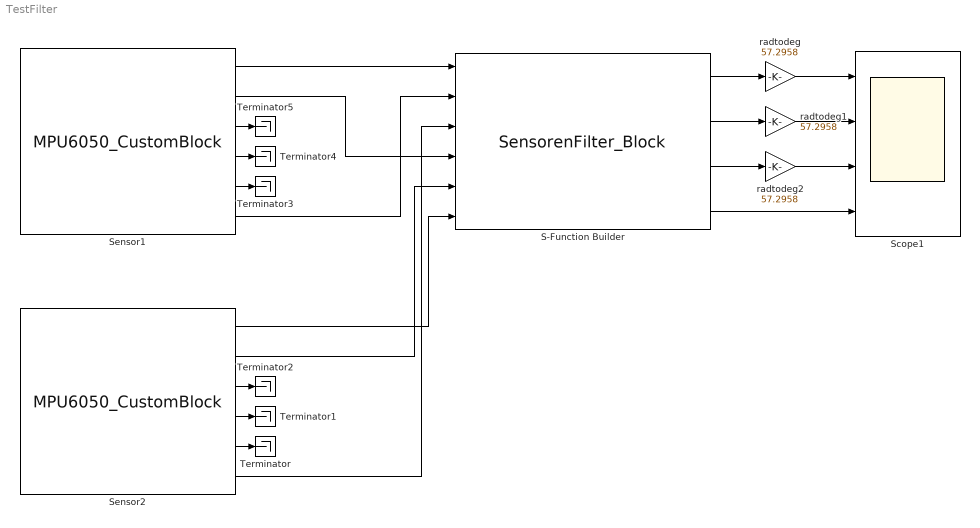
/*
 * Academic License - for use in teaching, academic research, and meeting
 * course requirements at degree granting institutions only.  Not for
 * government, commercial, or other organizational use.
 *
 * File: TestFilter.c
 *
 * Code generated for Simulink model 'TestFilter'.
 *
 * Model version                  : 1.17
 * Simulink Coder version         : 8.10 (R2016a) 10-Feb-2016
 * C/C++ source code generated on : Wed Aug 24 18:27:22 2016
 *
 * Target selection: ert.tlc
 * Embedded hardware selection: ARM Compatible->ARM Cortex
 * Code generation objectives: Unspecified
 * Validation result: Not run
 */

#include "TestFilter.h"
#include "TestFilter_private.h"
#include "TestFilter_dt.h"

/* Block signals (auto storage) */
B_TestFilter_T TestFilter_B;

/* Block states (auto storage) */
DW_TestFilter_T TestFilter_DW;

/* Real-time model */
RT_MODEL_TestFilter_T TestFilter_M_;
RT_MODEL_TestFilter_T *const TestFilter_M = &TestFilter_M_;

/* Model step function */
void TestFilter_step(void)
{
  /* S-Function (MPU6050_CustomBlock): '<Root>/Sensor1' */
  MPU6050_CustomBlock_Outputs_wrapper( &TestFilter_B.Sensor1_o1,
    &TestFilter_B.Sensor1_o2, &TestFilter_B.Sensor1_o3, &TestFilter_B.Sensor1_o4,
    &TestFilter_B.Sensor1_o5, &TestFilter_B.Sensor1_o6,
    &TestFilter_DW.Sensor1_DSTATE, &TestFilter_P.Sensor1_P1, 1,
    &TestFilter_P.Sensor1_P2, 1);

  /* S-Function (MPU6050_CustomBlock): '<Root>/Sensor2' */
  MPU6050_CustomBlock_Outputs_wrapper( &TestFilter_B.Sensor2_o1,
    &TestFilter_B.Sensor2_o2, &TestFilter_B.Sensor2_o3, &TestFilter_B.Sensor2_o4,
    &TestFilter_B.Sensor2_o5, &TestFilter_B.Sensor2_o6,
    &TestFilter_DW.Sensor2_DSTATE, &TestFilter_P.Sensor2_P1, 1,
    &TestFilter_P.Sensor2_P2, 1);

  /* S-Function (SensorenFilter_Block): '<Root>/S-Function Builder' */
  SensorenFilter_Block_Outputs_wrapper(&TestFilter_B.Sensor1_o1,
    &TestFilter_B.Sensor1_o6, &TestFilter_B.Sensor2_o6, &TestFilter_B.Sensor1_o2,
    &TestFilter_B.Sensor2_o2, &TestFilter_B.Sensor2_o1,
    &TestFilter_B.SFunctionBuilder_o1, &TestFilter_B.SFunctionBuilder_o2,
    &TestFilter_B.SFunctionBuilder_o3, &TestFilter_B.SFunctionBuilder_o4,
    &TestFilter_DW.SFunctionBuilder_DSTATE, &TestFilter_P.SFunctionBuilder_P1, 1);

  /* Gain: '<Root>/radtodeg' */
  TestFilter_B.radtodeg = TestFilter_P.radtodeg_Gain *
    TestFilter_B.SFunctionBuilder_o1;

  /* Gain: '<Root>/radtodeg1' */
  TestFilter_B.radtodeg1 = TestFilter_P.radtodeg1_Gain *
    TestFilter_B.SFunctionBuilder_o2;

  /* Gain: '<Root>/radtodeg2' */
  TestFilter_B.radtodeg2 = TestFilter_P.radtodeg2_Gain *
    TestFilter_B.SFunctionBuilder_o3;

  /* S-Function "MPU6050_CustomBlock_wrapper" Block: <Root>/Sensor1 */
  MPU6050_CustomBlock_Update_wrapper( &TestFilter_B.Sensor1_o1,
    &TestFilter_B.Sensor1_o2, &TestFilter_B.Sensor1_o3, &TestFilter_B.Sensor1_o4,
    &TestFilter_B.Sensor1_o5, &TestFilter_B.Sensor1_o6,
    &TestFilter_DW.Sensor1_DSTATE, &TestFilter_P.Sensor1_P1, 1,
    &TestFilter_P.Sensor1_P2, 1);

  /* S-Function "MPU6050_CustomBlock_wrapper" Block: <Root>/Sensor2 */
  MPU6050_CustomBlock_Update_wrapper( &TestFilter_B.Sensor2_o1,
    &TestFilter_B.Sensor2_o2, &TestFilter_B.Sensor2_o3, &TestFilter_B.Sensor2_o4,
    &TestFilter_B.Sensor2_o5, &TestFilter_B.Sensor2_o6,
    &TestFilter_DW.Sensor2_DSTATE, &TestFilter_P.Sensor2_P1, 1,
    &TestFilter_P.Sensor2_P2, 1);

  /* S-Function "SensorenFilter_Block_wrapper" Block: <Root>/S-Function Builder */
  SensorenFilter_Block_Update_wrapper(&TestFilter_B.Sensor1_o1,
    &TestFilter_B.Sensor1_o6, &TestFilter_B.Sensor2_o6, &TestFilter_B.Sensor1_o2,
    &TestFilter_B.Sensor2_o2, &TestFilter_B.Sensor2_o1,
    &TestFilter_B.SFunctionBuilder_o1, &TestFilter_B.SFunctionBuilder_o2,
    &TestFilter_B.SFunctionBuilder_o3, &TestFilter_B.SFunctionBuilder_o4,
    &TestFilter_DW.SFunctionBuilder_DSTATE, &TestFilter_P.SFunctionBuilder_P1, 1);

  /* External mode */
  rtExtModeUploadCheckTrigger(1);

  {                                    /* Sample time: [0.02s, 0.0s] */
    rtExtModeUpload(0, TestFilter_M->Timing.taskTime0);
  }

  /* signal main to stop simulation */
  {                                    /* Sample time: [0.02s, 0.0s] */
    if ((rtmGetTFinal(TestFilter_M)!=-1) &&
        !((rtmGetTFinal(TestFilter_M)-TestFilter_M->Timing.taskTime0) >
          TestFilter_M->Timing.taskTime0 * (DBL_EPSILON))) {
      rtmSetErrorStatus(TestFilter_M, "Simulation finished");
    }

    if (rtmGetStopRequested(TestFilter_M)) {
      rtmSetErrorStatus(TestFilter_M, "Simulation finished");
    }
  }

  /* Update absolute time for base rate */
  /* The "clockTick0" counts the number of times the code of this task has
   * been executed. The absolute time is the multiplication of "clockTick0"
   * and "Timing.stepSize0". Size of "clockTick0" ensures timer will not
   * overflow during the application lifespan selected.
   */
  TestFilter_M->Timing.taskTime0 =
    (++TestFilter_M->Timing.clockTick0) * TestFilter_M->Timing.stepSize0;
}
